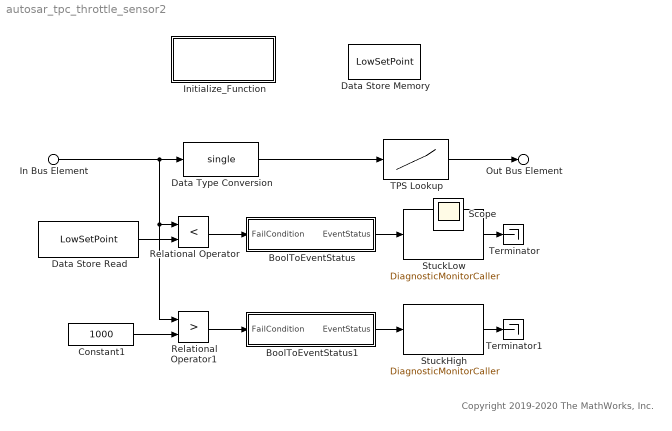
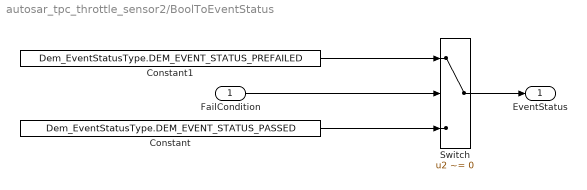
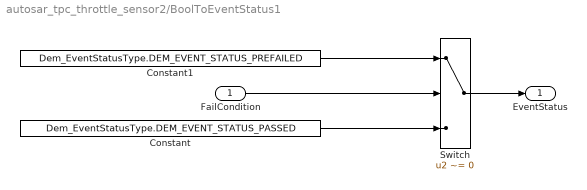
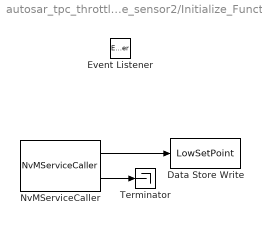
/*
 * Academic License - for use in teaching, academic research, and meeting
 * course requirements at degree granting institutions only.  Not for
 * government, commercial, or other organizational use.
 *
 * File: autosar_tpc_throttle_sensor2.c
 *
 * Code generated for Simulink model 'autosar_tpc_throttle_sensor2'.
 *
 * Model version                  : 4.1
 * Simulink Coder version         : 9.8 (R2022b) 13-May-2022
 * C/C++ source code generated on : Fri Nov 25 16:35:14 2022
 *
 * Target selection: autosar.tlc
 * Embedded hardware selection: Intel->x86-64 (Windows64)
 * Code generation objectives: Unspecified
 * Validation result: Not run
 */

#include "autosar_tpc_throttle_sensor2.h"
#include "Rte_Type.h"
#include "rtwtypes.h"
#include "look1_iflf_linlcpw.h"

/* Model step function */
void ThrottleSensor2_Step(void)
{
  Dem_EventStatusType tmp;

  /* Switch: '<S2>/Switch' incorporates:
   *  Constant: '<S2>/Constant'
   *  Constant: '<S2>/Constant1'
   *  Inport generated from: '<Root>/In Bus Element'
   *  RelationalOperator: '<Root>/Relational Operator1'
   */
  if (Rte_IRead_ThrottleSensor2_Step_TPS_HwIO_Value() > 1000) {
    tmp = DEM_EVENT_STATUS_PREFAILED;
  } else {
    tmp = DEM_EVENT_STATUS_PASSED;
  }

  /* End of Switch: '<S2>/Switch' */

  /* FunctionCaller: '<Root>/StuckHigh' */
  Rte_Call_S2StuckHigh_SetEventStatus(tmp);

  /* Switch: '<S1>/Switch' incorporates:
   *  Constant: '<S1>/Constant'
   *  Constant: '<S1>/Constant1'
   *  DataStoreRead: '<Root>/Data Store Read'
   *  Inport generated from: '<Root>/In Bus Element'
   *  RelationalOperator: '<Root>/Relational Operator'
   */
  if (Rte_IRead_ThrottleSensor2_Step_TPS_HwIO_Value() <
      *Rte_Pim_autosar_tpc_throttl_LowSetPoint()) {
    tmp = DEM_EVENT_STATUS_PREFAILED;
  } else {
    tmp = DEM_EVENT_STATUS_PASSED;
  }

  /* End of Switch: '<S1>/Switch' */

  /* FunctionCaller: '<Root>/StuckLow' */
  Rte_Call_S2StuckLow_SetEventStatus(tmp);

  /* Outport generated from: '<Root>/Out Bus Element' incorporates:
   *  DataTypeConversion: '<Root>/Data Type Conversion'
   *  Inport generated from: '<Root>/In Bus Element'
   *  Lookup_n-D: '<Root>/TPS Lookup'
   */
  Rte_IWrite_ThrottleSensor2_Step_TPS_Secondary_Value(look1_iflf_linlcpw
    (Rte_IRead_ThrottleSensor2_Step_TPS_HwIO_Value(),
     (Rte_CData_TPSSecondaryPercent_LkupTbl())->BP1,
     (Rte_CData_TPSSecondaryPercent_LkupTbl())->Table, 10U));
}
